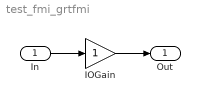
/*
 * test_fmi_grtfmi.c
 *
 * Code generation for model "test_fmi_grtfmi".
 *
 * Model version              : 1.8
 * Simulink Coder version : 9.8 (R2022b) 13-May-2022
 * C source code generated on : Sun Sep 25 16:56:22 2022
 *
 * Target selection: grt.tlc
 * Note: GRT includes extra infrastructure and instrumentation for prototyping
 * Embedded hardware selection: Intel->x86-64 (Windows64)
 * Code generation objectives: Unspecified
 * Validation result: Not run
 */

#include "test_fmi_grtfmi.h"
#include "rt_logging_mmi.h"
#include "test_fmi_grtfmi_capi.h"
#include "test_fmi_grtfmi_private.h"
#include "rt_nonfinite.h"

/* Model step function */
void test_fmi_grtfmi_step(RT_MODEL_test_fmi_grtfmi_T *const test_fmi_grtfmi_M)
{
  ExtU_test_fmi_grtfmi_T *test_fmi_grtfmi_U = (ExtU_test_fmi_grtfmi_T *)
    test_fmi_grtfmi_M->inputs;
  ExtY_test_fmi_grtfmi_T *test_fmi_grtfmi_Y = (ExtY_test_fmi_grtfmi_T *)
    test_fmi_grtfmi_M->outputs;

  /* Outport: '<Root>/Out' incorporates:
   *  Gain: '<Root>/IOGain'
   */
  test_fmi_grtfmi_Y->Out = test_fmi_grtfmi_P.IOGain_Gain * test_fmi_grtfmi_U->In;

  /* Matfile logging */
  rt_UpdateTXYLogVars(test_fmi_grtfmi_M->rtwLogInfo,
                      (&test_fmi_grtfmi_M->Timing.taskTime0));

  /* signal main to stop simulation */
  {                                    /* Sample time: [0.2s, 0.0s] */
    if ((rtmGetTFinal(test_fmi_grtfmi_M)!=-1) &&
        !((rtmGetTFinal(test_fmi_grtfmi_M)-test_fmi_grtfmi_M->Timing.taskTime0) >
          test_fmi_grtfmi_M->Timing.taskTime0 * (DBL_EPSILON))) {
      rtmSetErrorStatus(test_fmi_grtfmi_M, "Simulation finished");
    }
  }

  /* Update absolute time for base rate */
  /* The "clockTick0" counts the number of times the code of this task has
   * been executed. The absolute time is the multiplication of "clockTick0"
   * and "Timing.stepSize0". Size of "clockTick0" ensures timer will not
   * overflow during the application lifespan selected.
   * Timer of this task consists of two 32 bit unsigned integers.
   * The two integers represent the low bits Timing.clockTick0 and the high bits
   * Timing.clockTickH0. When the low bit overflows to 0, the high bits increment.
   */
  if (!(++test_fmi_grtfmi_M->Timing.clockTick0)) {
    ++test_fmi_grtfmi_M->Timing.clockTickH0;
  }

  test_fmi_grtfmi_M->Timing.taskTime0 = test_fmi_grtfmi_M->Timing.clockTick0 *
    test_fmi_grtfmi_M->Timing.stepSize0 + test_fmi_grtfmi_M->Timing.clockTickH0 *
    test_fmi_grtfmi_M->Timing.stepSize0 * 4294967296.0;
}
